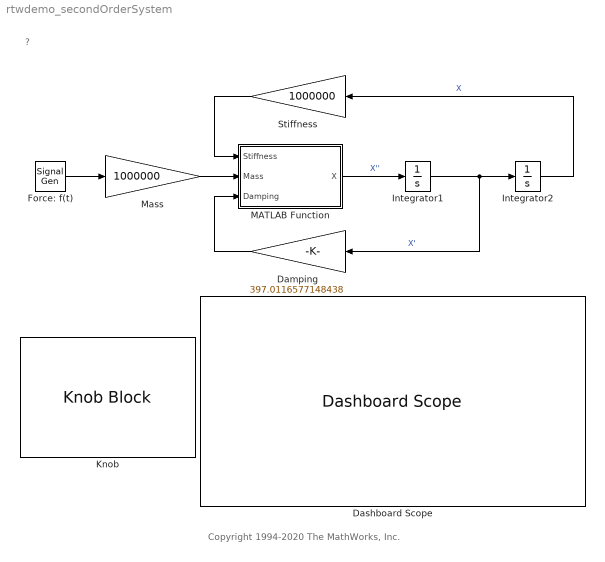
== matlab function rtwdemo_secondOrderSystem/MATLAB Function ==
function X = fcn(Stiffness,Mass,Damping)

X = (-Stiffness+Mass-Damping);

/*
 * rtwdemo_secondOrderSystem.c
 *
 * Code generation for model "rtwdemo_secondOrderSystem".
 *
 * Model version              : 5.1
 * Simulink Coder version : 9.7 (R2022a) 13-Nov-2021
 * C source code generated on : Mon Oct  9 18:02:01 2023
 *
 * Target selection: grt.tlc
 * Note: GRT includes extra infrastructure and instrumentation for prototyping
 * Embedded hardware selection: Intel->x86-64 (Windows64)
 * Code generation objective: Debugging
 * Validation result: Not run
 */

#include "rtwdemo_secondOrderSystem.h"
#include <math.h>
#include "rtwtypes.h"
#include "rtwdemo_secondOrderSystem_private.h"
#include "rt_nonfinite.h"
#include "rtwdemo_secondOrderSystem_dt.h"

/* Block signals (default storage) */
B_rtwdemo_secondOrderSystem_T rtwdemo_secondOrderSystem_B;

/* Continuous states */
X_rtwdemo_secondOrderSystem_T rtwdemo_secondOrderSystem_X;

/* Real-time model */
static RT_MODEL_rtwdemo_secondOrderS_T rtwdemo_secondOrderSystem_M_;
RT_MODEL_rtwdemo_secondOrderS_T *const rtwdemo_secondOrderSystem_M =
  &rtwdemo_secondOrderSystem_M_;

/*
 * This function updates continuous states using the ODE3 fixed-step
 * solver algorithm
 */
static void rt_ertODEUpdateContinuousStates(RTWSolverInfo *si )
{
  /* Solver Matrices */
  static const real_T rt_ODE3_A[3] = {
    1.0/2.0, 3.0/4.0, 1.0
  };

  static const real_T rt_ODE3_B[3][3] = {
    { 1.0/2.0, 0.0, 0.0 },

    { 0.0, 3.0/4.0, 0.0 },

    { 2.0/9.0, 1.0/3.0, 4.0/9.0 }
  };

  time_T t = rtsiGetT(si);
  time_T tnew = rtsiGetSolverStopTime(si);
  time_T h = rtsiGetStepSize(si);
  real_T *x = rtsiGetContStates(si);
  ODE3_IntgData *id = (ODE3_IntgData *)rtsiGetSolverData(si);
  real_T *y = id->y;
  real_T *f0 = id->f[0];
  real_T *f1 = id->f[1];
  real_T *f2 = id->f[2];
  real_T hB[3];
  int_T i;
  int_T nXc = 2;
  rtsiSetSimTimeStep(si,MINOR_TIME_STEP);

  /* Save the state values at time t in y, we'll use x as ynew. */
  (void) memcpy(y, x,
                (uint_T)nXc*sizeof(real_T));

  /* Assumes that rtsiSetT and ModelOutputs are up-to-date */
  /* f0 = f(t,y) */
  rtsiSetdX(si, f0);
  rtwdemo_secondOrderSystem_derivatives();

  /* f(:,2) = feval(odefile, t + hA(1), y + f*hB(:,1), args(:)(*)); */
  hB[0] = h * rt_ODE3_B[0][0];
  for (i = 0; i < nXc; i++) {
    x[i] = y[i] + (f0[i]*hB[0]);
  }

  rtsiSetT(si, t + h*rt_ODE3_A[0]);
  rtsiSetdX(si, f1);
  rtwdemo_secondOrderSystem_step();
  rtwdemo_secondOrderSystem_derivatives();

  /* f(:,3) = feval(odefile, t + hA(2), y + f*hB(:,2), args(:)(*)); */
  for (i = 0; i <= 1; i++) {
    hB[i] = h * rt_ODE3_B[1][i];
  }

  for (i = 0; i < nXc; i++) {
    x[i] = y[i] + (f0[i]*hB[0] + f1[i]*hB[1]);
  }

  rtsiSetT(si, t + h*rt_ODE3_A[1]);
  rtsiSetdX(si, f2);
  rtwdemo_secondOrderSystem_step();
  rtwdemo_secondOrderSystem_derivatives();

  /* tnew = t + hA(3);
     ynew = y + f*hB(:,3); */
  for (i = 0; i <= 2; i++) {
    hB[i] = h * rt_ODE3_B[2][i];
  }

  for (i = 0; i < nXc; i++) {
    x[i] = y[i] + (f0[i]*hB[0] + f1[i]*hB[1] + f2[i]*hB[2]);
  }

  rtsiSetT(si, tnew);
  rtsiSetSimTimeStep(si,MAJOR_TIME_STEP);
}

/* Model step function */
void rtwdemo_secondOrderSystem_step(void)
{
  real_T temp;
  if (rtmIsMajorTimeStep(rtwdemo_secondOrderSystem_M)) {
    /* set solver stop time */
    if (!(rtwdemo_secondOrderSystem_M->Timing.clockTick0+1)) {
      rtsiSetSolverStopTime(&rtwdemo_secondOrderSystem_M->solverInfo,
                            ((rtwdemo_secondOrderSystem_M->Timing.clockTickH0 +
        1) * rtwdemo_secondOrderSystem_M->Timing.stepSize0 * 4294967296.0));
    } else {
      rtsiSetSolverStopTime(&rtwdemo_secondOrderSystem_M->solverInfo,
                            ((rtwdemo_secondOrderSystem_M->Timing.clockTick0 + 1)
        * rtwdemo_secondOrderSystem_M->Timing.stepSize0 +
        rtwdemo_secondOrderSystem_M->Timing.clockTickH0 *
        rtwdemo_secondOrderSystem_M->Timing.stepSize0 * 4294967296.0));
    }
  }                                    /* end MajorTimeStep */

  /* Update absolute time of base rate at minor time step */
  if (rtmIsMinorTimeStep(rtwdemo_secondOrderSystem_M)) {
    rtwdemo_secondOrderSystem_M->Timing.t[0] = rtsiGetT
      (&rtwdemo_secondOrderSystem_M->solverInfo);
  }

  /* Integrator: '<Root>/Integrator1' */
  rtwdemo_secondOrderSystem_B.X = rtwdemo_secondOrderSystem_X.Integrator1_CSTATE;

  /* Gain: '<Root>/Damping' */
  rtwdemo_secondOrderSystem_B.Damping = rtwdemo_secondOrderSystem_P.Damping_Gain
    * rtwdemo_secondOrderSystem_B.X;

  /* SignalGenerator: '<Root>/Force: f(t)' */
  temp = rtwdemo_secondOrderSystem_P.Forceft_Frequency *
    rtwdemo_secondOrderSystem_M->Timing.t[0];
  if (temp - floor(temp) >= 0.5) {
    /* SignalGenerator: '<Root>/Force: f(t)' */
    rtwdemo_secondOrderSystem_B.Forceft =
      rtwdemo_secondOrderSystem_P.Forceft_Amplitude;
  } else {
    /* SignalGenerator: '<Root>/Force: f(t)' */
    rtwdemo_secondOrderSystem_B.Forceft =
      -rtwdemo_secondOrderSystem_P.Forceft_Amplitude;
  }

  /* End of SignalGenerator: '<Root>/Force: f(t)' */

  /* Integrator: '<Root>/Integrator2' */
  rtwdemo_secondOrderSystem_B.X_o =
    rtwdemo_secondOrderSystem_X.Integrator2_CSTATE;

  /* Gain: '<Root>/Stiffness' */
  rtwdemo_secondOrderSystem_B.Stiffness =
    rtwdemo_secondOrderSystem_P.Stiffness_Gain * rtwdemo_secondOrderSystem_B.X_o;

  /* Gain: '<Root>/Mass' */
  rtwdemo_secondOrderSystem_B.Mass = rtwdemo_secondOrderSystem_P.Mass_Gain *
    rtwdemo_secondOrderSystem_B.Forceft;

  /* MATLAB Function: '<Root>/MATLAB Function' */
  /* :  X = (-Stiffness+Mass-Damping); */
  rtwdemo_secondOrderSystem_B.X_f = (-rtwdemo_secondOrderSystem_B.Stiffness +
    rtwdemo_secondOrderSystem_B.Mass) - rtwdemo_secondOrderSystem_B.Damping;
  if (rtmIsMajorTimeStep(rtwdemo_secondOrderSystem_M)) {
    /* Matfile logging */
    rt_UpdateTXYLogVars(rtwdemo_secondOrderSystem_M->rtwLogInfo,
                        (rtwdemo_secondOrderSystem_M->Timing.t));
  }                                    /* end MajorTimeStep */

  if (rtmIsMajorTimeStep(rtwdemo_secondOrderSystem_M)) {
    /* External mode */
    rtExtModeUploadCheckTrigger(2);

    {                                  /* Sample time: [0.0s, 0.0s] */
      rtExtModeUpload(0, (real_T)rtwdemo_secondOrderSystem_M->Timing.t[0]);
    }

    if (rtmIsMajorTimeStep(rtwdemo_secondOrderSystem_M)) {/* Sample time: [0.001s, 0.0s] */
      rtExtModeUpload(1, (real_T)
                      (((rtwdemo_secondOrderSystem_M->Timing.clockTick1+
                         rtwdemo_secondOrderSystem_M->Timing.clockTickH1*
                         4294967296.0)) * 0.001));
    }
  }                                    /* end MajorTimeStep */

  if (rtmIsMajorTimeStep(rtwdemo_secondOrderSystem_M)) {
    /* signal main to stop simulation */
    {                                  /* Sample time: [0.0s, 0.0s] */
      if ((rtmGetTFinal(rtwdemo_secondOrderSystem_M)!=-1) &&
          !((rtmGetTFinal(rtwdemo_secondOrderSystem_M)-
             (((rtwdemo_secondOrderSystem_M->Timing.clockTick1+
                rtwdemo_secondOrderSystem_M->Timing.clockTickH1* 4294967296.0)) *
              0.001)) > (((rtwdemo_secondOrderSystem_M->Timing.clockTick1+
                           rtwdemo_secondOrderSystem_M->Timing.clockTickH1*
                           4294967296.0)) * 0.001) * (DBL_EPSILON))) {
        rtmSetErrorStatus(rtwdemo_secondOrderSystem_M, "Simulation finished");
      }

      if (rtmGetStopRequested(rtwdemo_secondOrderSystem_M)) {
        rtmSetErrorStatus(rtwdemo_secondOrderSystem_M, "Simulation finished");
      }
    }

    rt_ertODEUpdateContinuousStates(&rtwdemo_secondOrderSystem_M->solverInfo);

    /* Update absolute time for base rate */
    /* The "clockTick0" counts the number of times the code of this task has
     * been executed. The absolute time is the multiplication of "clockTick0"
     * and "Timing.stepSize0". Size of "clockTick0" ensures timer will not
     * overflow during the application lifespan selected.
     * Timer of this task consists of two 32 bit unsigned integers.
     * The two integers represent the low bits Timing.clockTick0 and the high bits
     * Timing.clockTickH0. When the low bit overflows to 0, the high bits increment.
     */
    if (!(++rtwdemo_secondOrderSystem_M->Timing.clockTick0)) {
      ++rtwdemo_secondOrderSystem_M->Timing.clockTickH0;
    }

    rtwdemo_secondOrderSystem_M->Timing.t[0] = rtsiGetSolverStopTime
      (&rtwdemo_secondOrderSystem_M->solverInfo);

    {
      /* Update absolute timer for sample time: [0.001s, 0.0s] */
      /* The "clockTick1" counts the number of times the code of this task has
       * been executed. The resolution of this integer timer is 0.001, which is the step size
       * of the task. Size of "clockTick1" ensures timer will not overflow during the
       * application lifespan selected.
       * Timer of this task consists of two 32 bit unsigned integers.
       * The two integers represent the low bits Timing.clockTick1 and the high bits
       * Timing.clockTickH1. When the low bit overflows to 0, the high bits increment.
       */
      rtwdemo_secondOrderSystem_M->Timing.clockTick1++;
      if (!rtwdemo_secondOrderSystem_M->Timing.clockTick1) {
        rtwdemo_secondOrderSystem_M->Timing.clockTickH1++;
      }
    }
  }                                    /* end MajorTimeStep */
}
